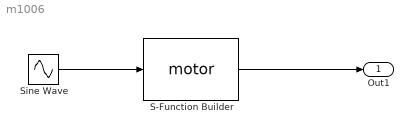
/*
 * m1006.c
 * 
 * Real-Time Workshop code generation for Simulink model "m1006.mdl".
 *
 * Model Version              : 1.1
 * Real-Time Workshop version : 6.1  (R14SP1)  05-Sep-2004
 * C source code generated on : Sun Apr 03 17:02:26 2005
 */

#include "m1006.h"
#include "m1006_private.h"

/* Block signals (auto storage) */
BlockIO_m1006 m1006_B;

/* Continuous states */
ContinuousStates_m1006 m1006_X;

/* External output (root outports fed by signals with auto storage) */
ExternalOutputs_m1006 m1006_Y;

/* Real-time model */
rtModel_m1006 m1006_M_;
rtModel_m1006 *m1006_M = &m1006_M_;

/* This function implements a singletasking scheduler for a system with 2
 * rates.  This function is called by the generated step function, hence the
 * generated code self-manages all its subrates.
 */
static void rate_scheduler(void)
{

  /* Compute which subrates run during the next base time step.  Subrates
   * are an integer multiple of the base rate counter.  Therefore, the subtask
   * counter is reset when it reaches its limit (zero means run).
   */
}

/* This function updates continuous states using the ODE4 fixed-step
 * solver algorithm
 */
static void rt_ertODEUpdateContinuousStates(RTWSolverInfo *si , int_T tid)
{
  time_T t = rtsiGetT(si);
  time_T tnew = rtsiGetSolverStopTime(si);
  time_T h = rtsiGetStepSize(si);
  real_T *x = rtsiGetContStates(si);
  ODE4_IntgData *id = rtsiGetSolverData(si);
  real_T *y = id->y;
  real_T *f0 = id->f[0];
  real_T *f1 = id->f[1];
  real_T *f2 = id->f[2];
  real_T *f3 = id->f[3];
  real_T temp;
  int_T i;

  int_T nXc = 1;

  rtsiSetSimTimeStep(si,MINOR_TIME_STEP);

  /* Save the state values at time t in y, we'll use x as ynew. */
  (void)memcpy(y, x, nXc*sizeof(real_T));

  /* Assumes that rtsiSetT and ModelOutputs are up-to-date */
  /* f0 = f(t,y) */
  rtsiSetdX(si, f0);
  m1006_derivatives();

  /* f1 = f(t + (h/2), y + (h/2)*f0) */
  temp = 0.5 * h;
  for (i = 0; i < nXc; i++) x[i] = y[i] + (temp*f0[i]);
  rtsiSetT(si, t + temp);
  rtsiSetdX(si, f1);
  m1006_output(0);
  m1006_derivatives();

  /* f2 = f(t + (h/2), y + (h/2)*f1) */
  for (i = 0; i < nXc; i++) x[i] = y[i] + (temp*f1[i]);
  rtsiSetdX(si, f2);
  m1006_output(0);
  m1006_derivatives();

  /* f3 = f(t + h, y + h*f2) */
  for (i = 0; i < nXc; i++) x[i] = y[i] + (h*f2[i]);
  rtsiSetT(si, tnew);
  rtsiSetdX(si, f3);
  m1006_output(0);
  m1006_derivatives();

  /* tnew = t + h
     ynew = y + (h/6)*(f0 + 2*f1 + 2*f2 + 2*f3) */
  temp = h / 6.0;
  for (i = 0; i < nXc; i++) {
    x[i] = y[i] + temp*(f0[i] + 2.0*f1[i] + 2.0*f2[i] + f3[i]);
  }

  rtsiSetSimTimeStep(si,MAJOR_TIME_STEP);
}

/* Model output function */
void m1006_output(int_T tid)
{

  /* Update absolute time of base rate at minor time step */
  if (rtmIsMinorTimeStep(m1006_M)) {
    m1006_M->Timing.t[0] = rtsiGetT(&m1006_M->solverInfo);
  }

  if (rtmIsMajorTimeStep(m1006_M)) {
    /* set solver stop time */
    rtsiSetSolverStopTime(&m1006_M->solverInfo,
     ((m1006_M->Timing.clockTick0+1)*m1006_M->Timing.stepSize0));
  }                                     /* end MajorTimeStep */

  /* Sin: '<Root>/Sine Wave' */
  m1006_B.SineWave = m1006_P.SineWave_Amp *
    sin(m1006_P.SineWave_Freq * m1006_M->Timing.t[0] + m1006_P.SineWave_Phase) +
    m1006_P.SineWave_Bias;

  /* S-Function "motor_wrapper" Block: <Root>/S-Function Builder */

  {
    real_T *pxc = m1006_M->ModelData.contStates;
    motor_Outputs_wrapper(&m1006_B.SineWave, &m1006_B.SFunctionBuilder, pxc);
  }

  /* Outport: '<Root>/Out1' */
  m1006_Y.Out1 = m1006_B.SFunctionBuilder;
}

/* Model update function */
void m1006_update(int_T tid)
{

  if (rtmIsMajorTimeStep(m1006_M)) {
    rt_ertODEUpdateContinuousStates(&m1006_M->solverInfo, 0);
  }

  /* Update absolute time for base rate */

  if(!(++m1006_M->Timing.clockTick0)) ++m1006_M->Timing.clockTickH0;
  m1006_M->Timing.t[0] = m1006_M->Timing.clockTick0 * m1006_M->Timing.stepSize0
    + m1006_M->Timing.clockTickH0 * m1006_M->Timing.stepSize0 * 4294967296.0;

  if (rtmIsMajorTimeStep(m1006_M) &&
   m1006_M->Timing.TaskCounters.TID[1] == 0) {
    /* Update absolute timer for sample time: [0.1s, 0.0s] */

    if(!(++m1006_M->Timing.clockTick1)) ++m1006_M->Timing.clockTickH1;
    m1006_M->Timing.t[1] = m1006_M->Timing.clockTick1 *
      m1006_M->Timing.stepSize1 + m1006_M->Timing.clockTickH1 *
      m1006_M->Timing.stepSize1 * 4294967296.0;
  }

  rate_scheduler();
}
